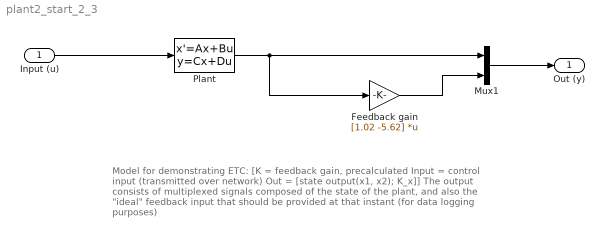
/*
 * plant2_start_2_3.cpp
 *
 * Academic License - for use in teaching, academic research, and meeting
 * course requirements at degree granting institutions only.  Not for
 * government, commercial, or other organizational use.
 *
 * Code generation for model "plant2_start_2_3".
 *
 * Model version              : 1.8
 * Simulink Coder version : 8.14 (R2018a) 06-Feb-2018
 * C++ source code generated on : Tue Jul  7 13:43:03 2020
 *
 * Target selection: NIVeriStand.tlc
 * Note: GRT includes extra infrastructure and instrumentation for prototyping
 * Embedded hardware selection: Intel->x86/Pentium
 * Code generation objectives: Unspecified
 * Validation result: Not run
 */

#include "plant2_start_2_3.h"
#include "plant2_start_2_3_private.h"

/* Continuous states */
X_plant2_start_2_3_T plant2_start_2_3_X;

/* External inputs (root inport signals with default storage) */
ExtU_plant2_start_2_3_T plant2_start_2_3_U;

/* External outputs (root outports fed by signals with default storage) */
ExtY_plant2_start_2_3_T plant2_start_2_3_Y;

/* Real-time model */
RT_MODEL_plant2_start_2_3_T plant2_start_2_3_M_;
RT_MODEL_plant2_start_2_3_T *const plant2_start_2_3_M = &plant2_start_2_3_M_;

/*
 * This function updates continuous states using the ODE3 fixed-step
 * solver algorithm
 */
static void rt_ertODEUpdateContinuousStates(RTWSolverInfo *si )
{
  /* Solver Matrices */
  static const real_T rt_ODE3_A[3] = {
    1.0/2.0, 3.0/4.0, 1.0
  };

  static const real_T rt_ODE3_B[3][3] = {
    { 1.0/2.0, 0.0, 0.0 },

    { 0.0, 3.0/4.0, 0.0 },

    { 2.0/9.0, 1.0/3.0, 4.0/9.0 }
  };

  time_T t = rtsiGetT(si);
  time_T tnew = rtsiGetSolverStopTime(si);
  time_T h = rtsiGetStepSize(si);
  real_T *x = rtsiGetContStates(si);
  ODE3_IntgData *id = (ODE3_IntgData *)rtsiGetSolverData(si);
  real_T *y = id->y;
  real_T *f0 = id->f[0];
  real_T *f1 = id->f[1];
  real_T *f2 = id->f[2];
  real_T hB[3];
  int_T i;
  int_T nXc = 2;
  rtsiSetSimTimeStep(si,MINOR_TIME_STEP);

  /* Save the state values at time t in y, we'll use x as ynew. */
  (void) memcpy(y, x,
                (uint_T)nXc*sizeof(real_T));

  /* Assumes that rtsiSetT and ModelOutputs are up-to-date */
  /* f0 = f(t,y) */
  rtsiSetdX(si, f0);
  plant2_start_2_3_derivatives();

  /* f(:,2) = feval(odefile, t + hA(1), y + f*hB(:,1), args(:)(*)); */
  hB[0] = h * rt_ODE3_B[0][0];
  for (i = 0; i < nXc; i++) {
    x[i] = y[i] + (f0[i]*hB[0]);
  }

  rtsiSetT(si, t + h*rt_ODE3_A[0]);
  rtsiSetdX(si, f1);
  plant2_start_2_3_output();
  plant2_start_2_3_derivatives();

  /* f(:,3) = feval(odefile, t + hA(2), y + f*hB(:,2), args(:)(*)); */
  for (i = 0; i <= 1; i++) {
    hB[i] = h * rt_ODE3_B[1][i];
  }

  for (i = 0; i < nXc; i++) {
    x[i] = y[i] + (f0[i]*hB[0] + f1[i]*hB[1]);
  }

  rtsiSetT(si, t + h*rt_ODE3_A[1]);
  rtsiSetdX(si, f2);
  plant2_start_2_3_output();
  plant2_start_2_3_derivatives();

  /* tnew = t + hA(3);
     ynew = y + f*hB(:,3); */
  for (i = 0; i <= 2; i++) {
    hB[i] = h * rt_ODE3_B[2][i];
  }

  for (i = 0; i < nXc; i++) {
    x[i] = y[i] + (f0[i]*hB[0] + f1[i]*hB[1] + f2[i]*hB[2]);
  }

  rtsiSetT(si, tnew);
  rtsiSetSimTimeStep(si,MAJOR_TIME_STEP);
}

/* Model output function */
void plant2_start_2_3_output(void)
{
  real_T rtb_Plant_idx_0;
  real_T rtb_Plant_idx_1;
  if (rtmIsMajorTimeStep(plant2_start_2_3_M)) {
    /* set solver stop time */
    if (!(plant2_start_2_3_M->Timing.clockTick0+1)) {
      rtsiSetSolverStopTime(&plant2_start_2_3_M->solverInfo,
                            ((plant2_start_2_3_M->Timing.clockTickH0 + 1) *
        plant2_start_2_3_M->Timing.stepSize0 * 4294967296.0));
    } else {
      rtsiSetSolverStopTime(&plant2_start_2_3_M->solverInfo,
                            ((plant2_start_2_3_M->Timing.clockTick0 + 1) *
        plant2_start_2_3_M->Timing.stepSize0 +
        plant2_start_2_3_M->Timing.clockTickH0 *
        plant2_start_2_3_M->Timing.stepSize0 * 4294967296.0));
    }
  }                                    /* end MajorTimeStep */

  /* Update absolute time of base rate at minor time step */
  if (rtmIsMinorTimeStep(plant2_start_2_3_M)) {
    plant2_start_2_3_M->Timing.t[0] = rtsiGetT(&plant2_start_2_3_M->solverInfo);
  }

  /* StateSpace: '<Root>/Plant' */
  rtb_Plant_idx_0 = plant2_start_2_3_P.Plant_C[0] *
    plant2_start_2_3_X.Plant_CSTATE[0];
  rtb_Plant_idx_1 = plant2_start_2_3_P.Plant_C[1] *
    plant2_start_2_3_X.Plant_CSTATE[1];

  /* Outport: '<Root>/Out (y)' incorporates:
   *  Gain: '<Root>/Feedback gain'
   */
  plant2_start_2_3_Y.Outy[0] = rtb_Plant_idx_0;
  plant2_start_2_3_Y.Outy[1] = rtb_Plant_idx_1;
  plant2_start_2_3_Y.Outy[2] = plant2_start_2_3_P.Feedbackgain_Gain[0] *
    rtb_Plant_idx_0 + plant2_start_2_3_P.Feedbackgain_Gain[1] * rtb_Plant_idx_1;
}

/* Model update function */
void plant2_start_2_3_update(void)
{
  if (rtmIsMajorTimeStep(plant2_start_2_3_M)) {
    rt_ertODEUpdateContinuousStates(&plant2_start_2_3_M->solverInfo);
  }

  /* Update absolute time for base rate */
  /* The "clockTick0" counts the number of times the code of this task has
   * been executed. The absolute time is the multiplication of "clockTick0"
   * and "Timing.stepSize0". Size of "clockTick0" ensures timer will not
   * overflow during the application lifespan selected.
   * Timer of this task consists of two 32 bit unsigned integers.
   * The two integers represent the low bits Timing.clockTick0 and the high bits
   * Timing.clockTickH0. When the low bit overflows to 0, the high bits increment.
   */
  if (!(++plant2_start_2_3_M->Timing.clockTick0)) {
    ++plant2_start_2_3_M->Timing.clockTickH0;
  }

  plant2_start_2_3_M->Timing.t[0] = rtsiGetSolverStopTime
    (&plant2_start_2_3_M->solverInfo);

  {
    /* Update absolute timer for sample time: [0.01s, 0.0s] */
    /* The "clockTick1" counts the number of times the code of this task has
     * been executed. The absolute time is the multiplication of "clockTick1"
     * and "Timing.stepSize1". Size of "clockTick1" ensures timer will not
     * overflow during the application lifespan selected.
     * Timer of this task consists of two 32 bit unsigned integers.
     * The two integers represent the low bits Timing.clockTick1 and the high bits
     * Timing.clockTickH1. When the low bit overflows to 0, the high bits increment.
     */
    if (!(++plant2_start_2_3_M->Timing.clockTick1)) {
      ++plant2_start_2_3_M->Timing.clockTickH1;
    }

    plant2_start_2_3_M->Timing.t[1] = plant2_start_2_3_M->Timing.clockTick1 *
      plant2_start_2_3_M->Timing.stepSize1 +
      plant2_start_2_3_M->Timing.clockTickH1 *
      plant2_start_2_3_M->Timing.stepSize1 * 4294967296.0;
  }
}
